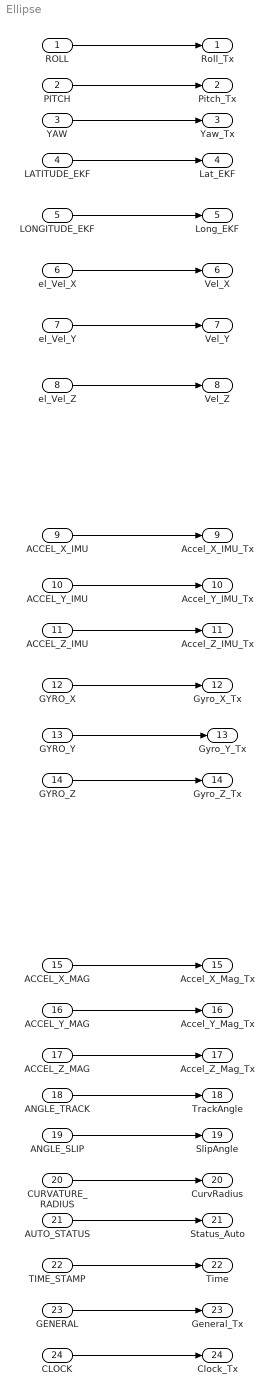
/*
 * Ellipse.c
 *
 * Academic License - for use in teaching, academic research, and meeting
 * course requirements at degree granting institutions only.  Not for
 * government, commercial, or other organizational use.
 *
 * Code generation for model "Ellipse".
 *
 * Model version              : 1.13
 * Simulink Coder version : 8.13 (R2017b) 24-Jul-2017
 * C source code generated on : Sat Jun 10 10:43:30 2023
 *
 * Target selection: irt.tlc
 * Note: GRT includes extra infrastructure and instrumentation for prototyping
 * Embedded hardware selection: Intel->x86-64 (Windows64)
 * Code generation objectives: Unspecified
 * Validation result: Not run
 */

#include "Ellipse.h"
#include "Ellipse_private.h"

/* External inputs (root inport signals with auto storage) */
ExtU_Ellipse_T Ellipse_U;

/* External outputs (root outports fed by signals with auto storage) */
ExtY_Ellipse_T Ellipse_Y;

/* Real-time model */
RT_MODEL_Ellipse_T Ellipse_M_;
RT_MODEL_Ellipse_T *const Ellipse_M = &Ellipse_M_;

/* Model output function */
static void Ellipse_output(void)
{
  /* Outport: '<Root>/Roll_Tx' incorporates:
   *  Inport: '<Root>/ROLL'
   */
  Ellipse_Y.Roll_Tx = Ellipse_U.ROLL;

  /* Outport: '<Root>/Pitch_Tx' incorporates:
   *  Inport: '<Root>/PITCH'
   */
  Ellipse_Y.Pitch_Tx = Ellipse_U.PITCH;

  /* Outport: '<Root>/Yaw_Tx' incorporates:
   *  Inport: '<Root>/YAW'
   */
  Ellipse_Y.Yaw_Tx = Ellipse_U.YAW;

  /* Outport: '<Root>/Lat_EKF' incorporates:
   *  Inport: '<Root>/LATITUDE_EKF'
   */
  Ellipse_Y.Lat_EKF = Ellipse_U.LATITUDE_EKF;

  /* Outport: '<Root>/Long_EKF' incorporates:
   *  Inport: '<Root>/LONGITUDE_EKF'
   */
  Ellipse_Y.Long_EKF = Ellipse_U.LONGITUDE_EKF;

  /* Outport: '<Root>/Vel_X' incorporates:
   *  Inport: '<Root>/el_Vel_X'
   */
  Ellipse_Y.Vel_X = Ellipse_U.el_Vel_X;

  /* Outport: '<Root>/Vel_Y' incorporates:
   *  Inport: '<Root>/el_Vel_Y'
   */
  Ellipse_Y.Vel_Y = Ellipse_U.el_Vel_Y;

  /* Outport: '<Root>/Vel_Z' incorporates:
   *  Inport: '<Root>/el_Vel_Z'
   */
  Ellipse_Y.Vel_Z = Ellipse_U.el_Vel_Z;

  /* Outport: '<Root>/Accel_X_IMU_Tx' incorporates:
   *  Inport: '<Root>/ACCEL_X_IMU'
   */
  Ellipse_Y.Accel_X_IMU_Tx = Ellipse_U.ACCEL_X_IMU;

  /* Outport: '<Root>/Accel_Y_IMU_Tx' incorporates:
   *  Inport: '<Root>/ACCEL_Y_IMU'
   */
  Ellipse_Y.Accel_Y_IMU_Tx = Ellipse_U.ACCEL_Y_IMU;

  /* Outport: '<Root>/Accel_Z_IMU_Tx' incorporates:
   *  Inport: '<Root>/ACCEL_Z_IMU'
   */
  Ellipse_Y.Accel_Z_IMU_Tx = Ellipse_U.ACCEL_Z_IMU;

  /* Outport: '<Root>/Gyro_X_Tx' incorporates:
   *  Inport: '<Root>/GYRO_X'
   */
  Ellipse_Y.Gyro_X_Tx = Ellipse_U.GYRO_X;

  /* Outport: '<Root>/Gyro_Y_Tx' incorporates:
   *  Inport: '<Root>/GYRO_Y'
   */
  Ellipse_Y.Gyro_Y_Tx = Ellipse_U.GYRO_Y;

  /* Outport: '<Root>/Gyro_Z_Tx' incorporates:
   *  Inport: '<Root>/GYRO_Z'
   */
  Ellipse_Y.Gyro_Z_Tx = Ellipse_U.GYRO_Z;

  /* Outport: '<Root>/Accel_X_Mag_Tx' incorporates:
   *  Inport: '<Root>/ACCEL_X_MAG'
   */
  Ellipse_Y.Accel_X_Mag_Tx = Ellipse_U.ACCEL_X_MAG;

  /* Outport: '<Root>/Accel_Y_Mag_Tx' incorporates:
   *  Inport: '<Root>/ACCEL_Y_MAG'
   */
  Ellipse_Y.Accel_Y_Mag_Tx = Ellipse_U.ACCEL_Y_MAG;

  /* Outport: '<Root>/Accel_Z_Mag_Tx' incorporates:
   *  Inport: '<Root>/ACCEL_Z_MAG'
   */
  Ellipse_Y.Accel_Z_Mag_Tx = Ellipse_U.ACCEL_Z_MAG;

  /* Outport: '<Root>/TrackAngle' incorporates:
   *  Inport: '<Root>/ANGLE_TRACK'
   */
  Ellipse_Y.TrackAngle = Ellipse_U.ANGLE_TRACK;

  /* Outport: '<Root>/SlipAngle' incorporates:
   *  Inport: '<Root>/ANGLE_SLIP'
   */
  Ellipse_Y.SlipAngle = Ellipse_U.ANGLE_SLIP;

  /* Outport: '<Root>/CurvRadius' incorporates:
   *  Inport: '<Root>/CURVATURE_RADIUS'
   */
  Ellipse_Y.CurvRadius = Ellipse_U.CURVATURE_RADIUS;

  /* Outport: '<Root>/Status_Auto' incorporates:
   *  Inport: '<Root>/AUTO_STATUS'
   */
  Ellipse_Y.Status_Auto = Ellipse_U.AUTO_STATUS;

  /* Outport: '<Root>/Time' incorporates:
   *  Inport: '<Root>/TIME_STAMP'
   */
  Ellipse_Y.Time = Ellipse_U.TIME_STAMP;

  /* Outport: '<Root>/General_Tx' incorporates:
   *  Inport: '<Root>/GENERAL'
   */
  Ellipse_Y.General_Tx = Ellipse_U.GENERAL;

  /* Outport: '<Root>/Clock_Tx' incorporates:
   *  Inport: '<Root>/CLOCK'
   */
  Ellipse_Y.Clock_Tx = Ellipse_U.CLOCK;
}

/* Model update function */
static void Ellipse_update(void)
{
  /* Update absolute time for base rate */
  /* The "clockTick0" counts the number of times the code of this task has
   * been executed. The absolute time is the multiplication of "clockTick0"
   * and "Timing.stepSize0". Size of "clockTick0" ensures timer will not
   * overflow during the application lifespan selected.
   * Timer of this task consists of two 32 bit unsigned integers.
   * The two integers represent the low bits Timing.clockTick0 and the high bits
   * Timing.clockTickH0. When the low bit overflows to 0, the high bits increment.
   */
  if (!(++Ellipse_M->Timing.clockTick0)) {
    ++Ellipse_M->Timing.clockTickH0;
  }

  Ellipse_M->Timing.t[0] = Ellipse_M->Timing.clockTick0 *
    Ellipse_M->Timing.stepSize0 + Ellipse_M->Timing.clockTickH0 *
    Ellipse_M->Timing.stepSize0 * 4294967296.0;
}
